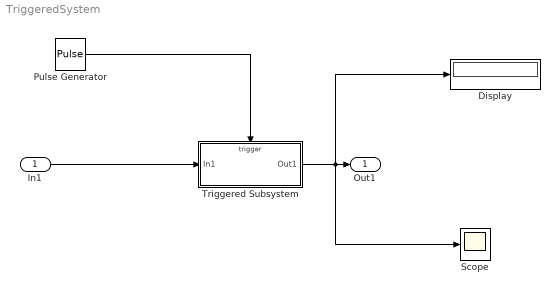
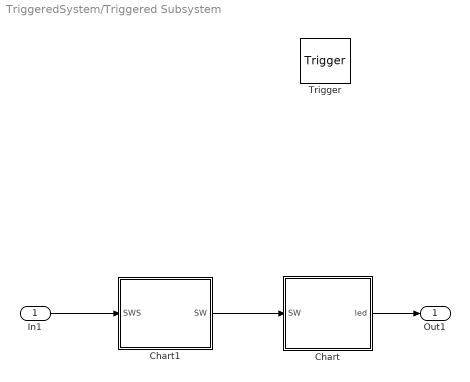
== stateflow chart TriggeredSystem/Triggered
Subsystem/Chart1 ==
  (default) -> (junction 29)
  (junction 29) -> (junction 30) [order 1] : [SWS == 1]
  (junction 29) -> (junction 31) [order 2] : {SW = 0;}
  (junction 30) -> (junction 32) : {SW = 1;}
  (junction 32) -> (junction 31)
  (junction 31) -> (junction 33)
  data: SWS input; SW output uint8

== stateflow chart TriggeredSystem/Triggered
Subsystem/Chart ==
  (default) -> (junction 9)
  (junction 9) -> (junction 10) [order 1] : [SW == 1]
  (junction 9) -> (junction 11) [order 2] : {led = uint8(0);}
  (junction 10) -> (junction 12) : {led = uint8(1);}
  (junction 12) -> (junction 11)
  (junction 11) -> (junction 13)
  data: led output uint8; SW input uint8

/*
 * File: TriggeredSystem.c
 *
 * Code generated for Simulink model 'TriggeredSystem'.
 *
 * Model version                  : 1.7
 * Simulink Coder version         : 8.10 (R2016a) 10-Feb-2016
 * C/C++ source code generated on : Mon Apr 04 10:23:12 2022
 *
 * Target selection: ert.tlc
 * Embedded hardware selection: Intel->x86-64 (Windows64)
 * Code generation objectives: Unspecified
 * Validation result: Not run
 */

#include "TriggeredSystem.h"
#include "TriggeredSystem_private.h"

/* Block states (auto storage) */
DW_TriggeredSystem_T TriggeredSystem_DW;

/* Previous zero-crossings (trigger) states */
PrevZCX_TriggeredSystem_T TriggeredSystem_PrevZCX;

/* External inputs (root inport signals with auto storage) */
ExtU_TriggeredSystem_T TriggeredSystem_U;

/* External outputs (root outports fed by signals with auto storage) */
ExtY_TriggeredSystem_T TriggeredSystem_Y;

/* Real-time model */
RT_MODEL_TriggeredSystem_T TriggeredSystem_M_;
RT_MODEL_TriggeredSystem_T *const TriggeredSystem_M = &TriggeredSystem_M_;

/* Model step function */
void TriggeredSystem_step(void)
{
  int32_T rtb_PulseGenerator;
  ZCEventType zcEvent;
  uint8_T rtb_SW;

  /* DiscretePulseGenerator: '<Root>/Pulse Generator' */
  rtb_PulseGenerator = ((TriggeredSystem_DW.clockTickCounter < 1) &&
                        (TriggeredSystem_DW.clockTickCounter >= 0));
  if (TriggeredSystem_DW.clockTickCounter >= 1) {
    TriggeredSystem_DW.clockTickCounter = 0;
  } else {
    TriggeredSystem_DW.clockTickCounter++;
  }

  /* End of DiscretePulseGenerator: '<Root>/Pulse Generator' */

  /* Outputs for Triggered SubSystem: '<Root>/Triggered Subsystem' incorporates:
   *  TriggerPort: '<S1>/Trigger'
   */
  zcEvent = rt_ZCFcn(RISING_ZERO_CROSSING,
                     &TriggeredSystem_PrevZCX.TriggeredSubsystem_Trig_ZCE,
                     ((real_T)rtb_PulseGenerator));
  if (zcEvent != NO_ZCEVENT) {
    /* Chart: '<S1>/Chart1' incorporates:
     *  Inport: '<Root>/In1'
     */
    /* Gateway: Triggered
       Subsystem/Chart1 */
    /* During: Triggered
       Subsystem/Chart1 */
    /* Entry Internal: Triggered
       Subsystem/Chart1 */
    /* Transition: '<S3>:23' */
    if (TriggeredSystem_U.In1 == 1.0) {
      /* Transition: '<S3>:24' */
      /* Transition: '<S3>:26' */
      rtb_SW = 1U;

      /* Transition: '<S3>:27' */
    } else {
      /* Transition: '<S3>:25' */
      rtb_SW = 0U;
    }

    /* End of Chart: '<S1>/Chart1' */

    /* Chart: '<S1>/Chart' */
    /* Transition: '<S3>:28' */
    /* Gateway: Triggered
       Subsystem/Chart */
    /* During: Triggered
       Subsystem/Chart */
    /* Entry Internal: Triggered
       Subsystem/Chart */
    /* Transition: '<S2>:3' */
    if (rtb_SW == 1) {
      /* Outport: '<Root>/Out1' */
      /* Transition: '<S2>:4' */
      /* Transition: '<S2>:6' */
      TriggeredSystem_Y.Out1 = 1U;

      /* Transition: '<S2>:7' */
    } else {
      /* Outport: '<Root>/Out1' */
      /* Transition: '<S2>:5' */
      TriggeredSystem_Y.Out1 = 0U;
    }

    /* End of Chart: '<S1>/Chart' */
    /* Transition: '<S2>:8' */
  }

  /* End of Outputs for SubSystem: '<Root>/Triggered Subsystem' */
}
